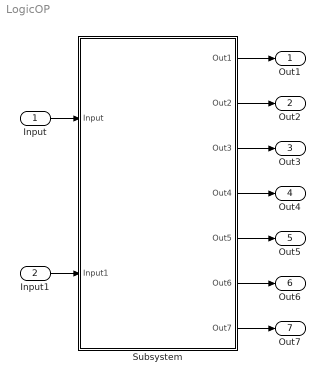
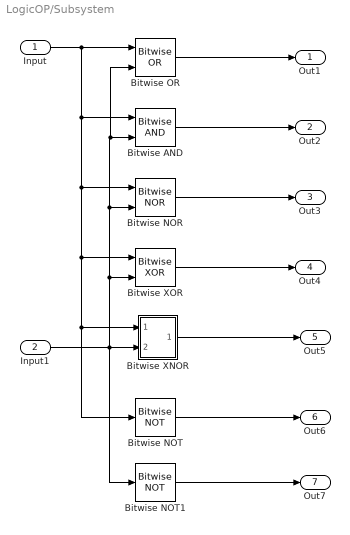
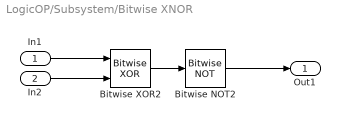
/*
 * File: LogicOP.c
 *
 * Code generated for Simulink model 'LogicOP'.
 *
 * Model version                  : 1.8
 * Simulink Coder version         : 9.3 (R2020a) 18-Nov-2019
 * C/C++ source code generated on : Thu Mar 24 14:59:05 2022
 *
 * Target selection: ert.tlc
 * Embedded hardware selection: Intel->x86-64 (Windows64)
 * Code generation objectives: Unspecified
 * Validation result: Not run
 */

#include "LogicOP.h"
#include "LogicOP_private.h"

/* External inputs (root inport signals with default storage) */
ExtU_LogicOP_T LogicOP_U;

/* External outputs (root outports fed by signals with default storage) */
ExtY_LogicOP_T LogicOP_Y;

/* Real-time model */
RT_MODEL_LogicOP_T LogicOP_M_;
RT_MODEL_LogicOP_T *const LogicOP_M = &LogicOP_M_;

/* Model step function */
void LogicOP_step(void)
{
  /* Outport: '<Root>/Out1' incorporates:
   *  Inport: '<Root>/Input'
   *  Inport: '<Root>/Input1'
   *  S-Function (sfix_bitop): '<S1>/Bitwise NOR'
   *  S-Function (sfix_bitop): '<S1>/Bitwise OR'
   */
  LogicOP_Y.Out1 = (uint8_T)(LogicOP_U.Input | LogicOP_U.Input1);

  /* Outport: '<Root>/Out2' incorporates:
   *  Inport: '<Root>/Input'
   *  Inport: '<Root>/Input1'
   *  S-Function (sfix_bitop): '<S1>/Bitwise AND'
   */
  LogicOP_Y.Out2 = (uint8_T)(LogicOP_U.Input & LogicOP_U.Input1);

  /* Outport: '<Root>/Out3' incorporates:
   *  S-Function (sfix_bitop): '<S1>/Bitwise NOR'
   */
  LogicOP_Y.Out3 = (uint8_T)~LogicOP_Y.Out1;

  /* Outport: '<Root>/Out4' incorporates:
   *  Inport: '<Root>/Input'
   *  Inport: '<Root>/Input1'
   *  S-Function (sfix_bitop): '<S1>/Bitwise XOR'
   *  S-Function (sfix_bitop): '<S2>/Bitwise NOT2'
   */
  LogicOP_Y.Out4 = (uint8_T)(LogicOP_U.Input ^ LogicOP_U.Input1);

  /* Outport: '<Root>/Out5' incorporates:
   *  S-Function (sfix_bitop): '<S2>/Bitwise NOT2'
   */
  LogicOP_Y.Out5 = (uint8_T)~LogicOP_Y.Out4;

  /* Outport: '<Root>/Out6' incorporates:
   *  Inport: '<Root>/Input'
   *  S-Function (sfix_bitop): '<S1>/Bitwise NOT'
   */
  LogicOP_Y.Out6 = (uint8_T)~LogicOP_U.Input;

  /* Outport: '<Root>/Out7' incorporates:
   *  Inport: '<Root>/Input1'
   *  S-Function (sfix_bitop): '<S1>/Bitwise NOT1'
   */
  LogicOP_Y.Out7 = (uint8_T)~LogicOP_U.Input1;
}
